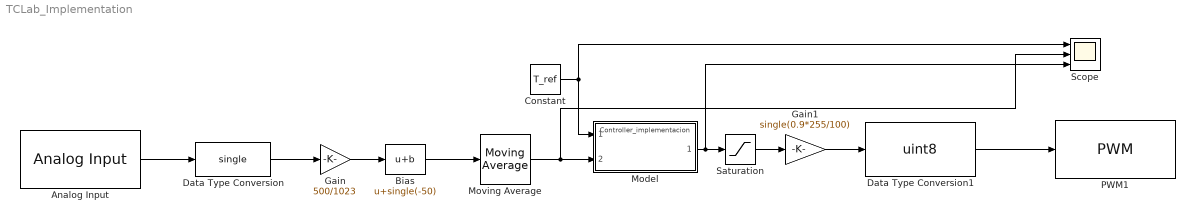
/*
 * Academic License - for use in teaching, academic research, and meeting
 * course requirements at degree granting institutions only.  Not for
 * government, commercial, or other organizational use.
 *
 * File: TCLab_Implementation.c
 *
 * Code generated for Simulink model 'TCLab_Implementation'.
 *
 * Model version                  : 1.31
 * Simulink Coder version         : 25.2 (R2025b) 28-Jul-2025
 * C/C++ source code generated on : Wed Sep  9 10:58:45 2026
 *
 * Target selection: ert.tlc
 * Embedded hardware selection: Atmel->AVR
 * Code generation objectives:
 *    1. Execution efficiency
 *    2. Traceability
 * Validation result: Not run
 */

#include "TCLab_Implementation.h"
#include "TCLab_Implementation_types.h"
#include <math.h>
#include "rt_nonfinite.h"
#include "rtwtypes.h"
#include "TCLab_Implementation_private.h"
#include "Controller_implementacion.h"

/* Block signals (default storage) */
B_TCLab_Implementation_T TCLab_Implementation_B;

/* Block states (default storage) */
DW_TCLab_Implementation_T TCLab_Implementation_DW;

/* Real-time model */
static RT_MODEL_TCLab_Implementation_T TCLab_Implementation_M_;
RT_MODEL_TCLab_Implementation_T *const TCLab_Implementation_M =
  &TCLab_Implementation_M_;

/* Forward declaration for local functions */
static void TCLab_Implemen_SystemCore_setup(dsp_simulink_MovingAverage_TC_T *obj);
static void TCLab_Implemen_SystemCore_setup(dsp_simulink_MovingAverage_TC_T *obj)
{
  obj->isInitialized = 1L;

  /* Start for MATLABSystem: '<Root>/Moving Average' */
  obj->NumChannels = 1L;
  obj->FrameLength = 1L;
  obj->pwN = 0.0F;
  obj->pmN = 0.0F;
  obj->plambda = obj->ForgettingFactor;
  obj->isSetupComplete = true;
  obj->TunablePropsChanged = false;
}

/* Model step function */
void TCLab_Implementation_step(void)
{
  real32_T b_mN_tmp;
  real32_T b_wN;
  uint16_T b_varargout_1;

  /* Constant: '<Root>/Constant' */
  TCLab_Implementation_B.Constant = rtP_T_ref;

  /* MATLABSystem: '<Root>/Analog Input' */
  TCLab_Implementation_DW.obj_d.AnalogInDriverObj.MW_ANALOGIN_HANDLE =
    MW_AnalogIn_GetHandle(18UL);
  MW_AnalogInSingle_ReadResult
    (TCLab_Implementation_DW.obj_d.AnalogInDriverObj.MW_ANALOGIN_HANDLE,
     &b_varargout_1, MW_ANALOGIN_UINT16);

  /* MATLABSystem: '<Root>/Moving Average' */
  if (TCLab_Implementation_DW.obj.ForgettingFactor !=
      TCLab_Implementation_P.MovingAverage_ForgettingFactor) {
    if (TCLab_Implementation_DW.obj.isInitialized == 1L) {
      TCLab_Implementation_DW.obj.TunablePropsChanged = true;
    }

    TCLab_Implementation_DW.obj.ForgettingFactor =
      TCLab_Implementation_P.MovingAverage_ForgettingFactor;
  }

  if (TCLab_Implementation_DW.obj.TunablePropsChanged) {
    TCLab_Implementation_DW.obj.TunablePropsChanged = false;
    TCLab_Implementation_DW.obj.plambda =
      TCLab_Implementation_DW.obj.ForgettingFactor;
  }

  b_wN = TCLab_Implementation_DW.obj.plambda * TCLab_Implementation_DW.obj.pwN +
    1.0F;

  /* Start for MATLABSystem: '<Root>/Moving Average' */
  b_mN_tmp = 1.0F / b_wN;

  /* MATLABSystem: '<Root>/Moving Average' incorporates:
   *  Bias: '<Root>/Bias'
   *  DataTypeConversion: '<Root>/Data Type Conversion'
   *  Gain: '<Root>/Gain'
   *  MATLABSystem: '<Root>/Analog Input'
   * */
  TCLab_Implementation_B.MovingAverage = (TCLab_Implementation_P.Gain_Gain *
    (real32_T)b_varargout_1 + TCLab_Implementation_P.Bias_Bias) * b_mN_tmp +
    (1.0F - b_mN_tmp) * TCLab_Implementation_DW.obj.pmN;
  TCLab_Implementation_DW.obj.pwN = b_wN;
  TCLab_Implementation_DW.obj.pmN = TCLab_Implementation_B.MovingAverage;

  /* ModelReference: '<Root>/Model' */
  Controller_implementacion(&TCLab_Implementation_B.Constant,
    &TCLab_Implementation_B.MovingAverage, &TCLab_Implementation_B.Model,
    &(TCLab_Implementation_DW.Model_InstanceData.rtdw));

  /* MATLABSystem: '<Root>/PWM1' */
  TCLab_Implementation_DW.obj_i.PWMDriverObj.MW_PWM_HANDLE = MW_PWM_GetHandle
    (3UL);

  /* Saturate: '<Root>/Saturation' */
  if (TCLab_Implementation_B.Model > TCLab_Implementation_P.Saturation_UpperSat)
  {
    b_wN = TCLab_Implementation_P.Saturation_UpperSat;
  } else if (TCLab_Implementation_B.Model <
             TCLab_Implementation_P.Saturation_LowerSat) {
    b_wN = TCLab_Implementation_P.Saturation_LowerSat;
  } else {
    b_wN = TCLab_Implementation_B.Model;
  }

  /* DataTypeConversion: '<Root>/Data Type Conversion1' incorporates:
   *  Gain: '<Root>/Gain1'
   *  Saturate: '<Root>/Saturation'
   */
  b_wN = (real32_T)floor((real_T)(TCLab_Implementation_P.Gain1_Gain * b_wN));
  if (rtIsNaNF(b_wN) || rtIsInfF(b_wN)) {
    b_wN = 0.0F;
  } else {
    b_wN = (real32_T)fmod((real_T)b_wN, 256.0);
  }

  /* MATLABSystem: '<Root>/PWM1' incorporates:
   *  DataTypeConversion: '<Root>/Data Type Conversion1'
   */
  MW_PWM_SetDutyCycle(TCLab_Implementation_DW.obj_i.PWMDriverObj.MW_PWM_HANDLE,
                      (real_T)(b_wN < 0.0F ? (int16_T)(uint8_T)(int16_T)
    -(int16_T)(int8_T)(uint8_T)-b_wN : (int16_T)(uint8_T)b_wN));

  /* Update absolute time for base rate */
  /* The "clockTick0" counts the number of times the code of this task has
   * been executed. The resolution of this integer timer is 1.0, which is the step size
   * of the task. Size of "clockTick0" ensures timer will not overflow during the
   * application lifespan selected.
   */
  TCLab_Implementation_M->Timing.clockTick0++;
}
